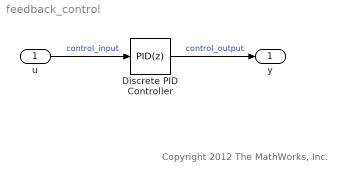
/*
 * File: feedback_control.c
 *
 * Code generated for Simulink model 'feedback_control'.
 *
 * Model version                  : 1.39
 * Simulink Coder version         : 8.7 (R2014b) 08-Sep-2014
 * C/C++ source code generated on : Wed Nov 19 13:46:01 2014
 *
 * Target selection: ert.tlc
 * Embedded hardware selection: 32-bit Generic
 * Code generation objectives: Unspecified
 * Validation result: Not run
 */

#include "feedback_control.h"
#include "feedback_control_private.h"

/* Block states (auto storage) */
D_Work_feedback_control feedback_control_DWork;

/* External inputs (root inport signals with auto storage) */
ExternalInputs_feedback_control feedback_control_U;

/* External outputs (root outports fed by signals with auto storage) */
ExternalOutputs_feedback_contro feedback_control_Y;

/* Real-time model */
RT_MODEL_feedback_control feedback_control_M_;
RT_MODEL_feedback_control *const feedback_control_M = &feedback_control_M_;

/* Model step function */
void feedback_control_step(void)
{
  real_T rtb_FilterCoefficient;

  /* Gain: '<S1>/Filter Coefficient' incorporates:
   *  DiscreteIntegrator: '<S1>/Filter'
   *  Gain: '<S1>/Derivative Gain'
   *  Inport: '<Root>/u'
   *  Sum: '<S1>/SumD'
   */
  rtb_FilterCoefficient = ((feedback_control_P.pid.D *
    feedback_control_U.control_input) - feedback_control_DWork.Filter_DSTATE) *
    feedback_control_P.pid.N;

  /* Outport: '<Root>/y' incorporates:
   *  DiscreteIntegrator: '<S1>/Integrator'
   *  Gain: '<S1>/Proportional Gain'
   *  Inport: '<Root>/u'
   *  Sum: '<S1>/Sum'
   */
  feedback_control_Y.y = ((feedback_control_P.pid.P *
    feedback_control_U.control_input) + feedback_control_DWork.Integrator_DSTATE)
    + rtb_FilterCoefficient;

  /* Update for DiscreteIntegrator: '<S1>/Integrator' incorporates:
   *  Gain: '<S1>/Integral Gain'
   *  Inport: '<Root>/u'
   */
  feedback_control_DWork.Integrator_DSTATE += (feedback_control_P.pid.I *
    feedback_control_U.control_input) * 0.001;

  /* Update for DiscreteIntegrator: '<S1>/Filter' */
  feedback_control_DWork.Filter_DSTATE += 0.001 * rtb_FilterCoefficient;
}
